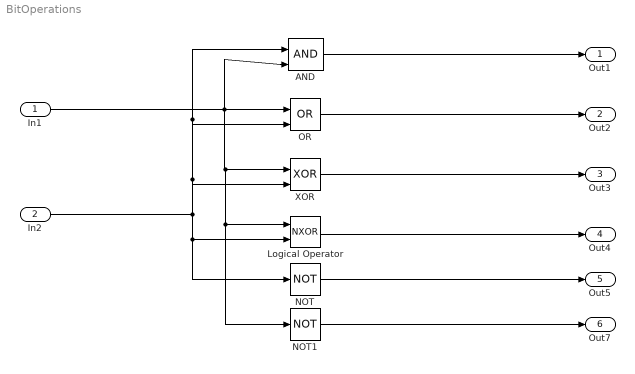
/*
 * File: BitOperations.c
 *
 * Code generated for Simulink model 'BitOperations'.
 *
 * Model version                  : 1.2
 * Simulink Coder version         : 9.5 (R2021a) 14-Nov-2020
 * C/C++ source code generated on : Sun Feb 11 20:47:06 2024
 *
 * Target selection: ert.tlc
 * Embedded hardware selection: Intel->x86-64 (Windows64)
 * Code generation objectives: Unspecified
 * Validation result: Not run
 */

#include "BitOperations.h"
#include "BitOperations_private.h"

/* External inputs (root inport signals with default storage) */
ExtU_BitOperations_T BitOperations_U;

/* External outputs (root outports fed by signals with default storage) */
ExtY_BitOperations_T BitOperations_Y;

/* Real-time model */
static RT_MODEL_BitOperations_T BitOperations_M_;
RT_MODEL_BitOperations_T *const BitOperations_M = &BitOperations_M_;

/* Model step function */
void BitOperations_step(void)
{
  /* Outport: '<Root>/Out1' incorporates:
   *  Inport: '<Root>/In1'
   *  Inport: '<Root>/In2'
   *  Logic: '<Root>/AND'
   */
  BitOperations_Y.Out1 = (BitOperations_U.In2 && BitOperations_U.In1);

  /* Outport: '<Root>/Out2' incorporates:
   *  Inport: '<Root>/In1'
   *  Inport: '<Root>/In2'
   *  Logic: '<Root>/OR'
   */
  BitOperations_Y.Out2 = (BitOperations_U.In1 || BitOperations_U.In2);

  /* Outport: '<Root>/Out3' incorporates:
   *  Inport: '<Root>/In1'
   *  Inport: '<Root>/In2'
   *  Logic: '<Root>/XOR'
   */
  BitOperations_Y.Out3 = BitOperations_U.In1 ^ BitOperations_U.In2;

  /* Outport: '<Root>/Out4' incorporates:
   *  Inport: '<Root>/In1'
   *  Inport: '<Root>/In2'
   *  Logic: '<Root>/Logical Operator'
   */
  BitOperations_Y.Out4 = (BitOperations_U.In1 == BitOperations_U.In2);

  /* Outport: '<Root>/Out5' incorporates:
   *  Inport: '<Root>/In2'
   *  Logic: '<Root>/NOT'
   */
  BitOperations_Y.Out5 = !BitOperations_U.In2;

  /* Outport: '<Root>/Out7' incorporates:
   *  Inport: '<Root>/In1'
   *  Logic: '<Root>/NOT1'
   */
  BitOperations_Y.Out7 = !BitOperations_U.In1;
}
